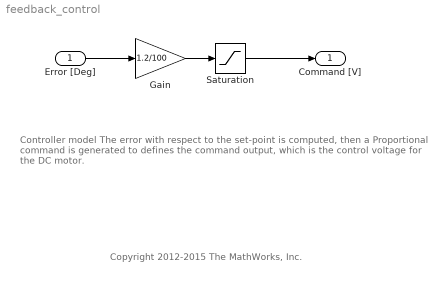
/*
 * Academic License - for use in teaching, academic research, and meeting
 * course requirements at degree granting institutions only.  Not for
 * government, commercial, or other organizational use.
 *
 * File: feedback_control.c
 *
 * Code generated for Simulink model 'feedback_control'.
 *
 * Model version                  : 1.43
 * Simulink Coder version         : 8.10 (R2016a) 10-Feb-2016
 * C/C++ source code generated on : Tue Jul 18 01:58:38 2017
 *
 * Target selection: ert.tlc
 * Embedded hardware selection: ARM Compatible->ARM Cortex
 * Code generation objectives: Unspecified
 * Validation result: Not run
 */

#include "feedback_control.h"

/*===========*
 * Constants *
 *===========*/
#define RT_PI                          3.14159265358979323846
#define RT_PIF                         3.1415927F
#define RT_LN_10                       2.30258509299404568402
#define RT_LN_10F                      2.3025851F
#define RT_LOG10E                      0.43429448190325182765
#define RT_LOG10EF                     0.43429449F
#define RT_E                           2.7182818284590452354
#define RT_EF                          2.7182817F

/*
 * UNUSED_PARAMETER(x)
 *   Used to specify that a function parameter (argument) is required but not
 *   accessed by the function body.
 */
#ifndef UNUSED_PARAMETER
# if defined(__LCC__)
#   define UNUSED_PARAMETER(x)                                   /* do nothing */
# else

/*
 * This is the semi-ANSI standard way of indicating that an
 * unused function parameter is required.
 */
#   define UNUSED_PARAMETER(x)         (void) (x)
# endif
#endif

/* Model step function */
void feedback_control_step(RT_MODEL_feedback_control_T *const feedback_control_M,
  real_T feedback_control_U_ErrorDeg, real_T *feedback_control_Y_CommandV)
{
  real_T u0;

  /* Gain: '<Root>/Gain' incorporates:
   *  Inport: '<Root>/Error [Deg]'
   */
  u0 = 0.012
    * feedback_control_U_ErrorDeg;

  /* Saturate: '<Root>/Saturation' */
  if (u0 > 1.0) {
    /* Outport: '<Root>/Command [V]' */
    *feedback_control_Y_CommandV = 1.0;
  } else if (u0 < -1.0) {
    /* Outport: '<Root>/Command [V]' */
    *feedback_control_Y_CommandV = -1.0;
  } else {
    /* Outport: '<Root>/Command [V]' */
    *feedback_control_Y_CommandV = u0;
  }

  /* End of Saturate: '<Root>/Saturation' */
  UNUSED_PARAMETER(feedback_control_M);
}
